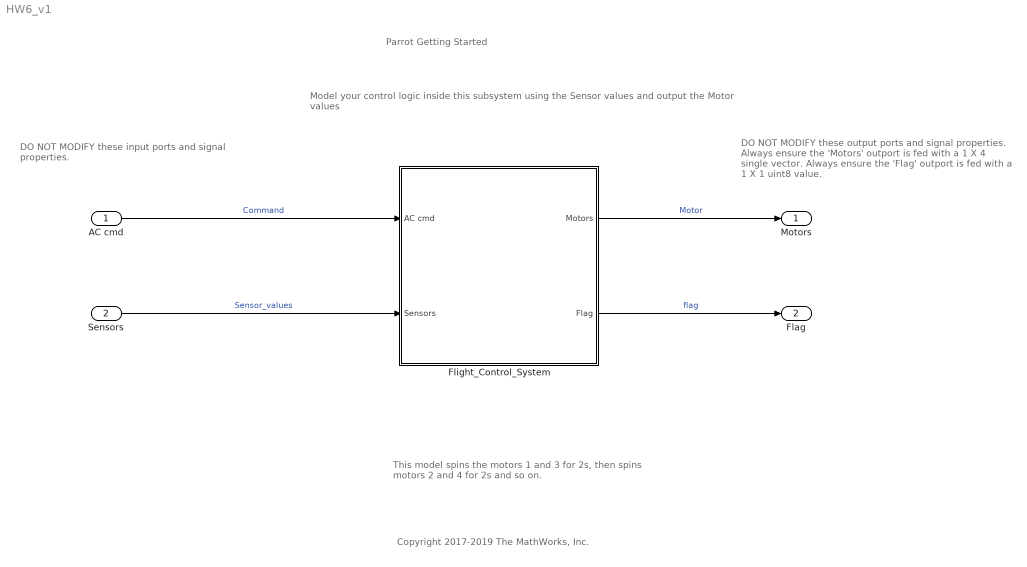
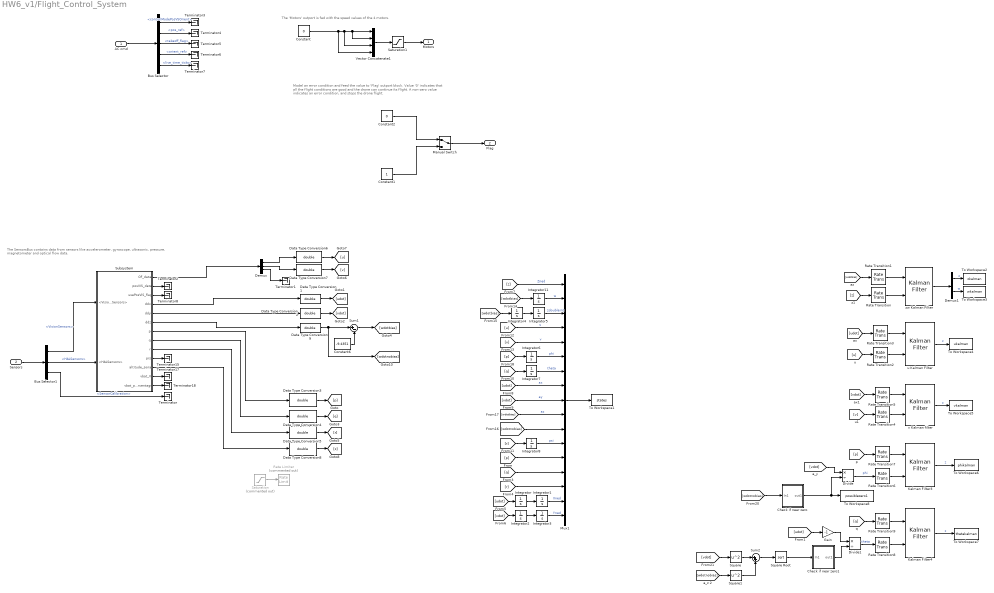
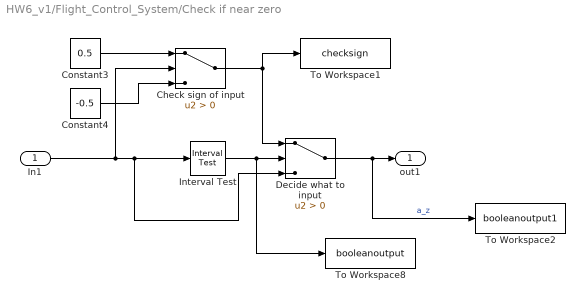
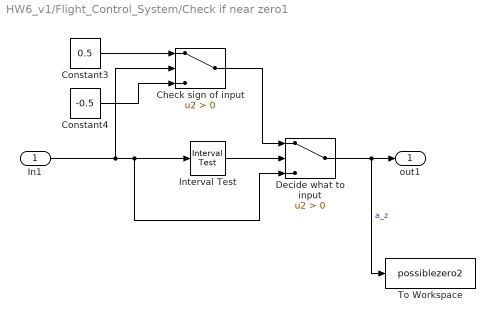
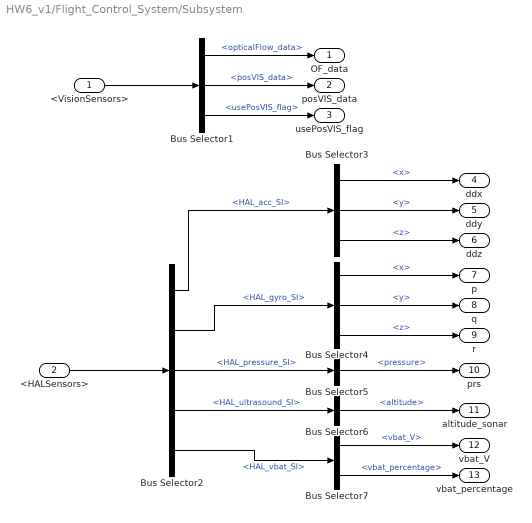
/*
 * HW6_v1.c
 *
 * Academic License - for use in teaching, academic research, and meeting
 * course requirements at degree granting institutions only.  Not for
 * government, commercial, or other organizational use.
 *
 * Code generation for model "HW6_v1".
 *
 * Model version              : 1.134
 * Simulink Coder version : 9.2 (R2019b) 18-Jul-2019
 * C source code generated on : Mon Apr  6 19:08:02 2020
 *
 * Target selection: ert.tlc
 * Embedded hardware selection: ARM Compatible->ARM 9
 * Code generation objectives: Unspecified
 * Validation result: Not run
 */

#include "HW6_v1.h"
#include "HW6_v1_private.h"

/* Exported block signals */
CommandBus cmd_inport;                 /* '<Root>/AC cmd' */
SensorsBus sensor_inport;              /* '<Root>/Sensors' */
real32_T motors_outport[4];            /* '<S1>/Saturation1' */
uint8_T flag_outport;                  /* '<S1>/Manual Switch' */

/* Block signals (default storage) */
B_HW6_v1_T HW6_v1_B;

/* Continuous states */
X_HW6_v1_T HW6_v1_X;

/* Block states (default storage) */
DW_HW6_v1_T HW6_v1_DW;

/* External outputs (root outports fed by signals with default storage) */
ExtY_HW6_v1_T HW6_v1_Y;

/* Real-time model */
RT_MODEL_HW6_v1_T HW6_v1_M_;
RT_MODEL_HW6_v1_T *const HW6_v1_M = &HW6_v1_M_;

/*
 * This function updates continuous states using the ODE3 fixed-step
 * solver algorithm
 */
static void rt_ertODEUpdateContinuousStates(RTWSolverInfo *si )
{
  /* Solver Matrices */
  static const real_T rt_ODE3_A[3] = {
    1.0/2.0, 3.0/4.0, 1.0
  };

  static const real_T rt_ODE3_B[3][3] = {
    { 1.0/2.0, 0.0, 0.0 },

    { 0.0, 3.0/4.0, 0.0 },

    { 2.0/9.0, 1.0/3.0, 4.0/9.0 }
  };

  time_T t = rtsiGetT(si);
  time_T tnew = rtsiGetSolverStopTime(si);
  time_T h = rtsiGetStepSize(si);
  real_T *x = rtsiGetContStates(si);
  ODE3_IntgData *id = (ODE3_IntgData *)rtsiGetSolverData(si);
  real_T *y = id->y;
  real_T *f0 = id->f[0];
  real_T *f1 = id->f[1];
  real_T *f2 = id->f[2];
  real_T hB[3];
  int_T i;
  int_T nXc = 10;
  rtsiSetSimTimeStep(si,MINOR_TIME_STEP);

  /* Save the state values at time t in y, we'll use x as ynew. */
  (void) memcpy(y, x,
                (uint_T)nXc*sizeof(real_T));

  /* Assumes that rtsiSetT and ModelOutputs are up-to-date */
  /* f0 = f(t,y) */
  rtsiSetdX(si, f0);
  HW6_v1_derivatives();

  /* f(:,2) = feval(odefile, t + hA(1), y + f*hB(:,1), args(:)(*)); */
  hB[0] = h * rt_ODE3_B[0][0];
  for (i = 0; i < nXc; i++) {
    x[i] = y[i] + (f0[i]*hB[0]);
  }

  rtsiSetT(si, t + h*rt_ODE3_A[0]);
  rtsiSetdX(si, f1);
  HW6_v1_step();
  HW6_v1_derivatives();

  /* f(:,3) = feval(odefile, t + hA(2), y + f*hB(:,2), args(:)(*)); */
  for (i = 0; i <= 1; i++) {
    hB[i] = h * rt_ODE3_B[1][i];
  }

  for (i = 0; i < nXc; i++) {
    x[i] = y[i] + (f0[i]*hB[0] + f1[i]*hB[1]);
  }

  rtsiSetT(si, t + h*rt_ODE3_A[1]);
  rtsiSetdX(si, f2);
  HW6_v1_step();
  HW6_v1_derivatives();

  /* tnew = t + hA(3);
     ynew = y + f*hB(:,3); */
  for (i = 0; i <= 2; i++) {
    hB[i] = h * rt_ODE3_B[2][i];
  }

  for (i = 0; i < nXc; i++) {
    x[i] = y[i] + (f0[i]*hB[0] + f1[i]*hB[1] + f2[i]*hB[2]);
  }

  rtsiSetT(si, tnew);
  rtsiSetSimTimeStep(si,MAJOR_TIME_STEP);
}

/*
 * System initialize for enable system:
 *    '<S32>/MeasurementUpdate'
 *    '<S84>/MeasurementUpdate'
 *    '<S136>/MeasurementUpdate'
 *    '<S188>/MeasurementUpdate'
 */
void HW6_v1_MeasurementUpdate_Init(B_MeasurementUpdate_HW6_v1_T *localB,
  P_MeasurementUpdate_HW6_v1_T *localP)
{
  /* SystemInitialize for Outport: '<S61>/L*(y[k]-yhat[k|k-1])' */
  localB->Product3 = localP->Lykyhatkk1_Y0;
}

/*
 * Disable for enable system:
 *    '<S32>/MeasurementUpdate'
 *    '<S84>/MeasurementUpdate'
 *    '<S136>/MeasurementUpdate'
 *    '<S188>/MeasurementUpdate'
 */
void HW6_v_MeasurementUpdate_Disable(B_MeasurementUpdate_HW6_v1_T *localB,
  DW_MeasurementUpdate_HW6_v1_T *localDW, P_MeasurementUpdate_HW6_v1_T *localP)
{
  /* Disable for Outport: '<S61>/L*(y[k]-yhat[k|k-1])' */
  localB->Product3 = localP->Lykyhatkk1_Y0;
  localDW->MeasurementUpdate_MODE = false;
}

/*
 * Output and update for enable system:
 *    '<S32>/MeasurementUpdate'
 *    '<S84>/MeasurementUpdate'
 *    '<S136>/MeasurementUpdate'
 *    '<S188>/MeasurementUpdate'
 */
void HW6_v1_MeasurementUpdate(RT_MODEL_HW6_v1_T * const HW6_v1_M, boolean_T
  rtu_Enable, real_T rtu_Lk, real_T rtu_yk, real_T rtu_Ck, real_T rtu_xhatkk1,
  real_T rtu_Dk, real_T rtu_uk, B_MeasurementUpdate_HW6_v1_T *localB,
  DW_MeasurementUpdate_HW6_v1_T *localDW, P_MeasurementUpdate_HW6_v1_T *localP)
{
  /* Outputs for Enabled SubSystem: '<S32>/MeasurementUpdate' incorporates:
   *  EnablePort: '<S61>/Enable'
   */
  if (rtmIsMajorTimeStep(HW6_v1_M)) {
    if (rtu_Enable) {
      localDW->MeasurementUpdate_MODE = true;
    } else {
      if (localDW->MeasurementUpdate_MODE) {
        HW6_v_MeasurementUpdate_Disable(localB, localDW, localP);
      }
    }
  }

  if (localDW->MeasurementUpdate_MODE) {
    /* Product: '<S61>/Product3' incorporates:
     *  Product: '<S61>/C[k]*xhat[k|k-1]'
     *  Product: '<S61>/D[k]*u[k]'
     *  Sum: '<S61>/Add1'
     *  Sum: '<S61>/Sum'
     */
    localB->Product3 = (rtu_yk - (rtu_Ck * rtu_xhatkk1 + rtu_Dk * rtu_uk)) *
      rtu_Lk;
  }

  /* End of Outputs for SubSystem: '<S32>/MeasurementUpdate' */
}

/*
 * System initialize for enable system:
 *    '<S39>/Enabled Subsystem'
 *    '<S91>/Enabled Subsystem'
 *    '<S143>/Enabled Subsystem'
 *    '<S195>/Enabled Subsystem'
 */
void HW6_v1_EnabledSubsystem_Init(B_EnabledSubsystem_HW6_v1_T *localB,
  P_EnabledSubsystem_HW6_v1_T *localP)
{
  /* SystemInitialize for Outport: '<S63>/deltax' */
  localB->Product2 = localP->deltax_Y0;
}

/*
 * Disable for enable system:
 *    '<S39>/Enabled Subsystem'
 *    '<S91>/Enabled Subsystem'
 *    '<S143>/Enabled Subsystem'
 *    '<S195>/Enabled Subsystem'
 */
void HW6_v1_EnabledSubsystem_Disable(B_EnabledSubsystem_HW6_v1_T *localB,
  DW_EnabledSubsystem_HW6_v1_T *localDW, P_EnabledSubsystem_HW6_v1_T *localP)
{
  /* Disable for Outport: '<S63>/deltax' */
  localB->Product2 = localP->deltax_Y0;
  localDW->EnabledSubsystem_MODE = false;
}

/*
 * Output and update for enable system:
 *    '<S39>/Enabled Subsystem'
 *    '<S91>/Enabled Subsystem'
 *    '<S143>/Enabled Subsystem'
 *    '<S195>/Enabled Subsystem'
 */
void HW6_v1_EnabledSubsystem(RT_MODEL_HW6_v1_T * const HW6_v1_M, boolean_T
  rtu_Enable, real_T rtu_Mk, real_T rtu_Ck, real_T rtu_yk, real_T rtu_xhatkk1,
  B_EnabledSubsystem_HW6_v1_T *localB, DW_EnabledSubsystem_HW6_v1_T *localDW,
  P_EnabledSubsystem_HW6_v1_T *localP)
{
  /* Outputs for Enabled SubSystem: '<S39>/Enabled Subsystem' incorporates:
   *  EnablePort: '<S63>/Enable'
   */
  if (rtmIsMajorTimeStep(HW6_v1_M)) {
    if (rtu_Enable) {
      localDW->EnabledSubsystem_MODE = true;
    } else {
      if (localDW->EnabledSubsystem_MODE) {
        HW6_v1_EnabledSubsystem_Disable(localB, localDW, localP);
      }
    }
  }

  if (localDW->EnabledSubsystem_MODE) {
    /* Product: '<S63>/Product2' incorporates:
     *  Product: '<S63>/Product'
     *  Sum: '<S63>/Add1'
     */
    localB->Product2 = (rtu_yk - rtu_Ck * rtu_xhatkk1) * rtu_Mk;
  }

  /* End of Outputs for SubSystem: '<S39>/Enabled Subsystem' */
}

/* Model step function */
void HW6_v1_step(void)
{
  /* local block i/o variables */
  real_T rtb_Reshapey_o;
  real_T rtb_MemoryX_j;
  real_T rtb_MemoryX_m;
  real_T rtb_MemoryX_i;
  real_T rtb_Add;
  real_T rtb_Add_l;
  real_T rtb_Add_h;
  real_T rtb_Add_c;
  if (rtmIsMajorTimeStep(HW6_v1_M)) {
    /* set solver stop time */
    rtsiSetSolverStopTime(&HW6_v1_M->solverInfo,((HW6_v1_M->Timing.clockTick0+1)*
      HW6_v1_M->Timing.stepSize0));
  }                                    /* end MajorTimeStep */

  /* Update absolute time of base rate at minor time step */
  if (rtmIsMinorTimeStep(HW6_v1_M)) {
    HW6_v1_M->Timing.t[0] = rtsiGetT(&HW6_v1_M->solverInfo);
  }

  /* DataTypeConversion: '<S1>/Data Type Conversion1' incorporates:
   *  Inport: '<Root>/Sensors'
   */
  HW6_v1_B.DataTypeConversion1 = sensor_inport.HALSensors.HAL_acc_SI.x;

  /* DataTypeConversion: '<S1>/Data Type Conversion2' incorporates:
   *  Inport: '<Root>/Sensors'
   */
  HW6_v1_B.DataTypeConversion2 = sensor_inport.HALSensors.HAL_acc_SI.y;

  /* Sum: '<S1>/Sum1' incorporates:
   *  Constant: '<S1>/Constant6'
   *  DataTypeConversion: '<S1>/Data Type Conversion9'
   *  Inport: '<Root>/Sensors'
   */
  HW6_v1_B.Sum1 = sensor_inport.HALSensors.HAL_acc_SI.z -
    HW6_v1_P.Constant6_Value;

  /* DataTypeConversion: '<S1>/Data Type Conversion3' incorporates:
   *  Inport: '<Root>/Sensors'
   */
  HW6_v1_B.DataTypeConversion3 = sensor_inport.HALSensors.HAL_gyro_SI.x;

  /* DataTypeConversion: '<S1>/Data Type Conversion4' incorporates:
   *  Inport: '<Root>/Sensors'
   */
  HW6_v1_B.DataTypeConversion4 = sensor_inport.HALSensors.HAL_gyro_SI.y;

  /* DataTypeConversion: '<S1>/Data Type Conversion5' incorporates:
   *  Inport: '<Root>/Sensors'
   */
  HW6_v1_B.DataTypeConversion5 = sensor_inport.HALSensors.HAL_gyro_SI.z;
  if (rtmIsMajorTimeStep(HW6_v1_M)) {
    /* Saturate: '<S1>/Saturation1' incorporates:
     *  Constant: '<S1>/Constant'
     */
    if (HW6_v1_P.Constant_Value > HW6_v1_P.Saturation1_UpperSat) {
      motors_outport[0] = HW6_v1_P.Saturation1_UpperSat;
    } else if (HW6_v1_P.Constant_Value < HW6_v1_P.Saturation1_LowerSat) {
      motors_outport[0] = HW6_v1_P.Saturation1_LowerSat;
    } else {
      motors_outport[0] = (real32_T)HW6_v1_P.Constant_Value;
    }

    /* Outport: '<Root>/Motors' */
    HW6_v1_Y.Motors[0] = motors_outport[0];

    /* Saturate: '<S1>/Saturation1' incorporates:
     *  Constant: '<S1>/Constant'
     */
    if (HW6_v1_P.Constant_Value > HW6_v1_P.Saturation1_UpperSat) {
      motors_outport[1] = HW6_v1_P.Saturation1_UpperSat;
    } else if (HW6_v1_P.Constant_Value < HW6_v1_P.Saturation1_LowerSat) {
      motors_outport[1] = HW6_v1_P.Saturation1_LowerSat;
    } else {
      motors_outport[1] = (real32_T)HW6_v1_P.Constant_Value;
    }

    /* Outport: '<Root>/Motors' */
    HW6_v1_Y.Motors[1] = motors_outport[1];

    /* Saturate: '<S1>/Saturation1' incorporates:
     *  Constant: '<S1>/Constant'
     */
    if (HW6_v1_P.Constant_Value > HW6_v1_P.Saturation1_UpperSat) {
      motors_outport[2] = HW6_v1_P.Saturation1_UpperSat;
    } else if (HW6_v1_P.Constant_Value < HW6_v1_P.Saturation1_LowerSat) {
      motors_outport[2] = HW6_v1_P.Saturation1_LowerSat;
    } else {
      motors_outport[2] = (real32_T)HW6_v1_P.Constant_Value;
    }

    /* Outport: '<Root>/Motors' */
    HW6_v1_Y.Motors[2] = motors_outport[2];

    /* Saturate: '<S1>/Saturation1' incorporates:
     *  Constant: '<S1>/Constant'
     */
    if (HW6_v1_P.Constant_Value > HW6_v1_P.Saturation1_UpperSat) {
      motors_outport[3] = HW6_v1_P.Saturation1_UpperSat;
    } else if (HW6_v1_P.Constant_Value < HW6_v1_P.Saturation1_LowerSat) {
      motors_outport[3] = HW6_v1_P.Saturation1_LowerSat;
    } else {
      motors_outport[3] = (real32_T)HW6_v1_P.Constant_Value;
    }

    /* Outport: '<Root>/Motors' */
    HW6_v1_Y.Motors[3] = motors_outport[3];

    /* ManualSwitch: '<S1>/Manual Switch' incorporates:
     *  Constant: '<S1>/Constant1'
     *  Constant: '<S1>/Constant2'
     */
    if (HW6_v1_P.ManualSwitch_CurrentSetting == 1) {
      flag_outport = HW6_v1_P.Constant2_Value;
    } else {
      flag_outport = HW6_v1_P.Constant1_Value;
    }

    /* End of ManualSwitch: '<S1>/Manual Switch' */

    /* Outport: '<Root>/Flag' */
    HW6_v1_Y.Flag = flag_outport;

    /* SignalConversion generated from: '<S1>/To Workspace1' incorporates:
     *  DataTypeConversion: '<S1>/Data Type Conversion6'
     *  DataTypeConversion: '<S1>/Data Type Conversion7'
     *  DataTypeConversion: '<S1>/Data Type Conversion8'
     *  DataTypeConversion: '<S1>/Data Type Conversion9'
     *  Inport: '<Root>/Sensors'
     *  Integrator: '<S1>/Integrator1'
     *  Integrator: '<S1>/Integrator11'
     *  Integrator: '<S1>/Integrator3'
     *  Integrator: '<S1>/Integrator5'
     *  Integrator: '<S1>/Integrator6'
     *  Integrator: '<S1>/Integrator7'
     *  Integrator: '<S1>/Integrator8'
     */
    HW6_v1_B.TmpSignalConversionAtToWork[0] =
      sensor_inport.HALSensors.HAL_ultrasound_SI.altitude;
    HW6_v1_B.TmpSignalConversionAtToWork[1] = HW6_v1_X.Integrator11_CSTATE;
    HW6_v1_B.TmpSignalConversionAtToWork[2] = HW6_v1_X.Integrator5_CSTATE;
    HW6_v1_B.TmpSignalConversionAtToWork[3] =
      sensor_inport.VisionSensors.opticalFlow_data[0];
    HW6_v1_B.TmpSignalConversionAtToWork[4] =
      sensor_inport.VisionSensors.opticalFlow_data[1];
    HW6_v1_B.TmpSignalConversionAtToWork[5] = HW6_v1_X.Integrator6_CSTATE;
    HW6_v1_B.TmpSignalConversionAtToWork[6] = HW6_v1_X.Integrator7_CSTATE;
    HW6_v1_B.TmpSignalConversionAtToWork[7] = HW6_v1_B.DataTypeConversion1;
    HW6_v1_B.TmpSignalConversionAtToWork[8] = HW6_v1_B.DataTypeConversion2;
    HW6_v1_B.TmpSignalConversionAtToWork[9] = HW6_v1_B.Sum1;
    HW6_v1_B.TmpSignalConversionAtToWork[10] =
      sensor_inport.HALSensors.HAL_acc_SI.z;
    HW6_v1_B.TmpSignalConversionAtToWork[11] = HW6_v1_X.Integrator8_CSTATE;
    HW6_v1_B.TmpSignalConversionAtToWork[12] = HW6_v1_B.DataTypeConversion3;
    HW6_v1_B.TmpSignalConversionAtToWork[13] = HW6_v1_B.DataTypeConversion4;
    HW6_v1_B.TmpSignalConversionAtToWork[14] = HW6_v1_B.DataTypeConversion5;
    HW6_v1_B.TmpSignalConversionAtToWork[15] = HW6_v1_X.Integrator1_CSTATE;
    HW6_v1_B.TmpSignalConversionAtToWork[16] = HW6_v1_X.Integrator3_CSTATE;

    /* ToWorkspace: '<S1>/To Workspace1' */
    {
      double locTime = ((HW6_v1_M->Timing.clockTick1) * 0.005);
      ;
      if (rtmIsMajorTimeStep(HW6_v1_M)) {
        rt_UpdateStructLogVar((StructLogVar *)
                              HW6_v1_DW.ToWorkspace1_PWORK.LoggedData, &locTime,
                              &HW6_v1_B.TmpSignalConversionAtToWork[0]);
      }
    }

    /* Reshape: '<S9>/Reshapey' incorporates:
     *  DataTypeConversion: '<S1>/Data Type Conversion8'
     *  Inport: '<Root>/Sensors'
     */
    HW6_v1_B.Reshapey = sensor_inport.HALSensors.HAL_ultrasound_SI.altitude;

    /* Delay: '<S9>/MemoryX' incorporates:
     *  Constant: '<S9>/X0'
     */
    if (HW6_v1_DW.icLoad != 0) {
      HW6_v1_DW.MemoryX_DSTATE[0] = HW6_v1_P.X0_Value[0];
      HW6_v1_DW.MemoryX_DSTATE[1] = HW6_v1_P.X0_Value[1];
    }

    HW6_v1_B.rtb_MemoryX_idx_0 = HW6_v1_DW.MemoryX_DSTATE[0];
    HW6_v1_B.rtb_MemoryX_idx_1 = HW6_v1_DW.MemoryX_DSTATE[1];

    /* Outputs for Enabled SubSystem: '<S247>/Enabled Subsystem' incorporates:
     *  EnablePort: '<S271>/Enable'
     */
    if (rtmIsMajorTimeStep(HW6_v1_M)) {
      /* Constant: '<S9>/Enable' */
      if (HW6_v1_P.Enable_Value) {
        HW6_v1_DW.EnabledSubsystem_MODE = true;
      } else {
        if (HW6_v1_DW.EnabledSubsystem_MODE) {
          /* Disable for Outport: '<S271>/deltax' */
          HW6_v1_B.Product2[0] = HW6_v1_P.deltax_Y0;
          HW6_v1_B.Product2[1] = HW6_v1_P.deltax_Y0;
          HW6_v1_DW.EnabledSubsystem_MODE = false;
        }
      }
    }

    if (HW6_v1_DW.EnabledSubsystem_MODE) {
      /* Sum: '<S271>/Add1' incorporates:
       *  Constant: '<S9>/C'
       *  DataTypeConversion: '<S1>/Data Type Conversion8'
       *  Delay: '<S9>/MemoryX'
       *  Inport: '<Root>/Sensors'
       *  Product: '<S271>/Product'
       */
      HW6_v1_B.Sum = sensor_inport.HALSensors.HAL_ultrasound_SI.altitude -
        (HW6_v1_P.C_Value[0] * HW6_v1_DW.MemoryX_DSTATE[0] + HW6_v1_P.C_Value[1]
         * HW6_v1_DW.MemoryX_DSTATE[1]);

      /* Product: '<S271>/Product2' incorporates:
       *  Constant: '<S220>/KalmanGainM'
       */
      HW6_v1_B.Product2[0] = HW6_v1_P.KalmanGainM_Value[0] * HW6_v1_B.Sum;
      HW6_v1_B.Product2[1] = HW6_v1_P.KalmanGainM_Value[1] * HW6_v1_B.Sum;
    }

    /* End of Outputs for SubSystem: '<S247>/Enabled Subsystem' */

    /* Sum: '<S247>/Add' incorporates:
     *  Delay: '<S9>/MemoryX'
     */
    HW6_v1_B.Akxhatkk1[0] = HW6_v1_B.Product2[0] + HW6_v1_DW.MemoryX_DSTATE[0];
    HW6_v1_B.Akxhatkk1[1] = HW6_v1_B.Product2[1] + HW6_v1_DW.MemoryX_DSTATE[1];

    /* ToWorkspace: '<S1>/To Workspace2' */
    {
      double locTime = ((HW6_v1_M->Timing.clockTick1) * 0.005);
      ;
      if (rtmIsMajorTimeStep(HW6_v1_M)) {
        rt_UpdateStructLogVar((StructLogVar *)
                              HW6_v1_DW.ToWorkspace2_PWORK.LoggedData, &locTime,
                              &HW6_v1_B.Akxhatkk1[0]);
      }
    }

    /* ToWorkspace: '<S1>/To Workspace3' */
    {
      double locTime = ((HW6_v1_M->Timing.clockTick1) * 0.005);
      ;
      if (rtmIsMajorTimeStep(HW6_v1_M)) {
        rt_UpdateStructLogVar((StructLogVar *)
                              HW6_v1_DW.ToWorkspace3_PWORK.LoggedData, &locTime,
                              &HW6_v1_B.Akxhatkk1[1]);
      }
    }

    /* Reshape: '<S7>/Reshapey' incorporates:
     *  DataTypeConversion: '<S1>/Data Type Conversion6'
     *  Inport: '<Root>/Sensors'
     */
    HW6_v1_B.Reshapey_e = sensor_inport.VisionSensors.opticalFlow_data[0];

    /* Delay: '<S7>/MemoryX' incorporates:
     *  Constant: '<S7>/X0'
     */
    if (HW6_v1_DW.icLoad_m != 0) {
      HW6_v1_DW.MemoryX_DSTATE_l = HW6_v1_P.X0_Value_h;
    }

    HW6_v1_B.MemoryX_o = HW6_v1_DW.MemoryX_DSTATE_l;

    /* End of Delay: '<S7>/MemoryX' */

    /* Outputs for Enabled SubSystem: '<S143>/Enabled Subsystem' */
    /* Constant: '<S7>/Enable' incorporates:
     *  Constant: '<S116>/KalmanGainM'
     *  Constant: '<S7>/C'
     */
    HW6_v1_EnabledSubsystem(HW6_v1_M, HW6_v1_P.Enable_Value_g,
      HW6_v1_P.KalmanGainM_Value_c, HW6_v1_P.C_Value_a, HW6_v1_B.Reshapey_e,
      HW6_v1_B.MemoryX_o, &HW6_v1_B.EnabledSubsystem_d,
      &HW6_v1_DW.EnabledSubsystem_d, &HW6_v1_P.EnabledSubsystem_d);

    /* End of Outputs for SubSystem: '<S143>/Enabled Subsystem' */

    /* Sum: '<S143>/Add' */
    HW6_v1_B.Dkuk = HW6_v1_B.EnabledSubsystem_d.Product2 + HW6_v1_B.MemoryX_o;

    /* ToWorkspace: '<S1>/To Workspace4' */
    {
      double locTime = ((HW6_v1_M->Timing.clockTick1) * 0.005);
      ;
      if (rtmIsMajorTimeStep(HW6_v1_M)) {
        rt_UpdateStructLogVar((StructLogVar *)
                              HW6_v1_DW.ToWorkspace4_PWORK.LoggedData, &locTime,
                              &HW6_v1_B.Dkuk);
      }
    }

    /* Reshape: '<S8>/Reshapey' incorporates:
     *  DataTypeConversion: '<S1>/Data Type Conversion7'
     *  Inport: '<Root>/Sensors'
     */
    rtb_Reshapey_o = sensor_inport.VisionSensors.opticalFlow_data[1];

    /* Delay: '<S8>/MemoryX' incorporates:
     *  Constant: '<S8>/X0'
     */
    if (HW6_v1_DW.icLoad_l != 0) {
      HW6_v1_DW.MemoryX_DSTATE_f = HW6_v1_P.X0_Value_l;
    }

    rtb_MemoryX_j = HW6_v1_DW.MemoryX_DSTATE_f;

    /* End of Delay: '<S8>/MemoryX' */

    /* Outputs for Enabled SubSystem: '<S195>/Enabled Subsystem' */
    /* Constant: '<S8>/Enable' incorporates:
     *  Constant: '<S168>/KalmanGainM'
     *  Constant: '<S8>/C'
     */
    HW6_v1_EnabledSubsystem(HW6_v1_M, HW6_v1_P.Enable_Value_m,
      HW6_v1_P.KalmanGainM_Value_i, HW6_v1_P.C_Value_d, rtb_Reshapey_o,
      rtb_MemoryX_j, &HW6_v1_B.EnabledSubsystem_f0,
      &HW6_v1_DW.EnabledSubsystem_f0, &HW6_v1_P.EnabledSubsystem_f0);

    /* End of Outputs for SubSystem: '<S195>/Enabled Subsystem' */

    /* Sum: '<S195>/Add' */
    HW6_v1_B.Dkuk = HW6_v1_B.EnabledSubsystem_f0.Product2 + rtb_MemoryX_j;

    /* ToWorkspace: '<S1>/To Workspace5' */
    {
      double locTime = ((HW6_v1_M->Timing.clockTick1) * 0.005);
      ;
      if (rtmIsMajorTimeStep(HW6_v1_M)) {
        rt_UpdateStructLogVar((StructLogVar *)
                              HW6_v1_DW.ToWorkspace5_PWORK.LoggedData, &locTime,
                              &HW6_v1_B.Dkuk);
      }
    }
  }

  /* Switch: '<S2>/Check sign of input' incorporates:
   *  Constant: '<S2>/Constant3'
   *  Constant: '<S2>/Constant4'
   *  DataTypeConversion: '<S1>/Data Type Conversion9'
   *  Inport: '<Root>/Sensors'
   */
  if (sensor_inport.HALSensors.HAL_acc_SI.z >
      HW6_v1_P.Checksignofinput_Threshold_b) {
    HW6_v1_B.Checksignofinput = HW6_v1_P.Constant3_Value;
  } else {
    HW6_v1_B.Checksignofinput = HW6_v1_P.Constant4_Value;
  }

  /* End of Switch: '<S2>/Check sign of input' */

  /* Logic: '<S10>/AND' incorporates:
   *  Constant: '<S10>/Lower Limit'
   *  Constant: '<S10>/Upper Limit'
   *  DataTypeConversion: '<S1>/Data Type Conversion9'
   *  Inport: '<Root>/Sensors'
   *  RelationalOperator: '<S10>/Lower Test'
   *  RelationalOperator: '<S10>/Upper Test'
   */
  HW6_v1_B.AND = ((HW6_v1_P.IntervalTest_lowlimit <=
                   sensor_inport.HALSensors.HAL_acc_SI.z) &&
                  (sensor_inport.HALSensors.HAL_acc_SI.z <=
                   HW6_v1_P.IntervalTest_uplimit));

  /* Switch: '<S2>/Decide what to input' incorporates:
   *  DataTypeConversion: '<S1>/Data Type Conversion9'
   *  Inport: '<Root>/Sensors'
   */
  if (HW6_v1_B.AND) {
    HW6_v1_B.a_z = HW6_v1_B.Checksignofinput;
  } else {
    HW6_v1_B.a_z = sensor_inport.HALSensors.HAL_acc_SI.z;
  }

  /* End of Switch: '<S2>/Decide what to input' */

  /* Product: '<S1>/Divide' */
  HW6_v1_B.Sum = HW6_v1_B.DataTypeConversion2 / HW6_v1_B.a_z;
  if (rtmIsMajorTimeStep(HW6_v1_M)) {
    /* Delay: '<S4>/MemoryX' incorporates:
     *  Constant: '<S4>/X0'
     */
    if (HW6_v1_DW.icLoad_d != 0) {
      HW6_v1_DW.MemoryX_DSTATE_g = HW6_v1_P.X0_Value_g;
    }

    rtb_MemoryX_m = HW6_v1_DW.MemoryX_DSTATE_g;

    /* End of Delay: '<S4>/MemoryX' */

    /* Outputs for Enabled SubSystem: '<S39>/Enabled Subsystem' */
    /* Constant: '<S4>/Enable' incorporates:
     *  Constant: '<S12>/KalmanGainM'
     *  Constant: '<S4>/C'
     */
    HW6_v1_EnabledSubsystem(HW6_v1_M, HW6_v1_P.Enable_Value_i,
      HW6_v1_P.KalmanGainM_Value_l, HW6_v1_P.C_Value_h, HW6_v1_B.Sum,
      rtb_MemoryX_m, &HW6_v1_B.EnabledSubsystem, &HW6_v1_DW.EnabledSubsystem,
      &HW6_v1_P.EnabledSubsystem);

    /* End of Outputs for SubSystem: '<S39>/Enabled Subsystem' */

    /* Sum: '<S39>/Add' */
    HW6_v1_B.Dkuk = HW6_v1_B.EnabledSubsystem.Product2 + rtb_MemoryX_m;

    /* ToWorkspace: '<S1>/To Workspace6' */
    {
      double locTime = ((HW6_v1_M->Timing.clockTick1) * 0.005);
      ;
      if (rtmIsMajorTimeStep(HW6_v1_M)) {
        rt_UpdateStructLogVar((StructLogVar *)
                              HW6_v1_DW.ToWorkspace6_PWORK.LoggedData, &locTime,
                              &HW6_v1_B.Dkuk);
      }
    }
  }

  /* Sqrt: '<S1>/Square Root' incorporates:
   *  DataTypeConversion: '<S1>/Data Type Conversion9'
   *  Inport: '<Root>/Sensors'
   *  Math: '<S1>/Square'
   *  Math: '<S1>/Square1'
   *  Sum: '<S1>/Sum2'
   */
  HW6_v1_B.SquareRoot = sqrt(HW6_v1_B.DataTypeConversion2 *
    HW6_v1_B.DataTypeConversion2 + (real_T)sensor_inport.HALSensors.HAL_acc_SI.z
    * sensor_inport.HALSensors.HAL_acc_SI.z);

  /* Switch: '<S3>/Decide what to input' incorporates:
   *  Constant: '<S11>/Lower Limit'
   *  Constant: '<S11>/Upper Limit'
   *  Logic: '<S11>/AND'
   *  RelationalOperator: '<S11>/Lower Test'
   *  RelationalOperator: '<S11>/Upper Test'
   */
  if ((HW6_v1_P.IntervalTest_lowlimit_n <= HW6_v1_B.SquareRoot) &&
      (HW6_v1_B.SquareRoot <= HW6_v1_P.IntervalTest_uplimit_c)) {
    /* Switch: '<S3>/Check sign of input' incorporates:
     *  Constant: '<S3>/Constant3'
     *  Constant: '<S3>/Constant4'
     */
    if (HW6_v1_B.SquareRoot > HW6_v1_P.Checksignofinput_Threshold) {
      HW6_v1_B.a_z_m = HW6_v1_P.Constant3_Value_f;
    } else {
      HW6_v1_B.a_z_m = HW6_v1_P.Constant4_Value_n;
    }

    /* End of Switch: '<S3>/Check sign of input' */
  } else {
    HW6_v1_B.a_z_m = HW6_v1_B.SquareRoot;
  }

  /* End of Switch: '<S3>/Decide what to input' */

  /* Product: '<S1>/Divide1' incorporates:
   *  Gain: '<S1>/Gain'
   */
  HW6_v1_B.SquareRoot = HW6_v1_P.Gain_Gain * HW6_v1_B.DataTypeConversion1 /
    HW6_v1_B.a_z_m;
  if (rtmIsMajorTimeStep(HW6_v1_M)) {
    /* Delay: '<S5>/MemoryX' incorporates:
     *  Constant: '<S5>/X0'
     */
    if (HW6_v1_DW.icLoad_e != 0) {
      HW6_v1_DW.MemoryX_DSTATE_b = HW6_v1_P.X0_Value_p;
    }

    rtb_MemoryX_i = HW6_v1_DW.MemoryX_DSTATE_b;

    /* End of Delay: '<S5>/MemoryX' */

    /* Outputs for Enabled SubSystem: '<S91>/Enabled Subsystem' */
    /* Constant: '<S5>/Enable' incorporates:
     *  Constant: '<S5>/C'
     *  Constant: '<S64>/KalmanGainM'
     */
    HW6_v1_EnabledSubsystem(HW6_v1_M, HW6_v1_P.Enable_Value_gd,
      HW6_v1_P.KalmanGainM_Value_n, HW6_v1_P.C_Value_b, HW6_v1_B.SquareRoot,
      rtb_MemoryX_i, &HW6_v1_B.EnabledSubsystem_f, &HW6_v1_DW.EnabledSubsystem_f,
      &HW6_v1_P.EnabledSubsystem_f);

    /* End of Outputs for SubSystem: '<S91>/Enabled Subsystem' */

    /* Sum: '<S91>/Add' */
    HW6_v1_B.Dkuk = HW6_v1_B.EnabledSubsystem_f.Product2 + rtb_MemoryX_i;

    /* ToWorkspace: '<S1>/To Workspace7' */
    {
      double locTime = ((HW6_v1_M->Timing.clockTick1) * 0.005);
      ;
      if (rtmIsMajorTimeStep(HW6_v1_M)) {
        rt_UpdateStructLogVar((StructLogVar *)
                              HW6_v1_DW.ToWorkspace7_PWORK.LoggedData, &locTime,
                              &HW6_v1_B.Dkuk);
      }
    }

    /* ToWorkspace: '<S1>/To Workspace8' */
    {
      double locTime = ((HW6_v1_M->Timing.clockTick1) * 0.005);
      ;
      if (rtmIsMajorTimeStep(HW6_v1_M)) {
        rt_UpdateStructLogVar((StructLogVar *)
                              HW6_v1_DW.ToWorkspace8_PWORK.LoggedData, &locTime,
                              &HW6_v1_B.a_z);
      }
    }

    /* ToWorkspace: '<S2>/To Workspace1' */
    {
      double locTime = ((HW6_v1_M->Timing.clockTick1) * 0.005);
      ;
      if (rtmIsMajorTimeStep(HW6_v1_M)) {
        rt_UpdateStructLogVar((StructLogVar *)
                              HW6_v1_DW.ToWorkspace1_PWORK_j.LoggedData,
                              &locTime, &HW6_v1_B.Checksignofinput);
      }
    }

    /* ToWorkspace: '<S2>/To Workspace2' */
    {
      double locTime = ((HW6_v1_M->Timing.clockTick1) * 0.005);
      ;
      if (rtmIsMajorTimeStep(HW6_v1_M)) {
        rt_UpdateStructLogVar((StructLogVar *)
                              HW6_v1_DW.ToWorkspace2_PWORK_n.LoggedData,
                              &locTime, &HW6_v1_B.a_z);
      }
    }

    /* ToWorkspace: '<S2>/To Workspace8' */
    {
      double locTime = ((HW6_v1_M->Timing.clockTick1) * 0.005);
      ;
      if (rtmIsMajorTimeStep(HW6_v1_M)) {
        rt_UpdateStructLogVar((StructLogVar *)
                              HW6_v1_DW.ToWorkspace8_PWORK_a.LoggedData,
                              &locTime, &HW6_v1_B.AND);
      }
    }

    /* ToWorkspace: '<S3>/To Workspace' */
    {
      double locTime = ((HW6_v1_M->Timing.clockTick1) * 0.005);
      ;
      if (rtmIsMajorTimeStep(HW6_v1_M)) {
        rt_UpdateStructLogVar((StructLogVar *)
                              HW6_v1_DW.ToWorkspace_PWORK.LoggedData, &locTime,
                              &HW6_v1_B.a_z_m);
      }
    }
  }

  /* Integrator: '<S1>/Integrator' */
  HW6_v1_B.Integrator = HW6_v1_X.Integrator_CSTATE;

  /* Integrator: '<S1>/Integrator2' */
  HW6_v1_B.Integrator2 = HW6_v1_X.Integrator2_CSTATE;

  /* Integrator: '<S1>/Integrator4' */
  HW6_v1_B.Integrator4 = HW6_v1_X.Integrator4_CSTATE;
  if (rtmIsMajorTimeStep(HW6_v1_M)) {
    /* Product: '<S32>/A[k]*xhat[k|k-1]' incorporates:
     *  Constant: '<S4>/A'
     */
    HW6_v1_B.Dkuk = HW6_v1_P.A_Value * rtb_MemoryX_m;

    /* Outputs for Enabled SubSystem: '<S32>/MeasurementUpdate' */
    /* Constant: '<S4>/Enable' incorporates:
     *  Constant: '<S12>/KalmanGainL'
     *  Constant: '<S4>/C'
     *  Constant: '<S4>/D'
     */
    HW6_v1_MeasurementUpdate(HW6_v1_M, HW6_v1_P.Enable_Value_i,
      HW6_v1_P.KalmanGainL_Value, HW6_v1_B.Sum, HW6_v1_P.C_Value_h,
      rtb_MemoryX_m, HW6_v1_P.D_Value, HW6_v1_B.DataTypeConversion3,
      &HW6_v1_B.MeasurementUpdate, &HW6_v1_DW.MeasurementUpdate,
      &HW6_v1_P.MeasurementUpdate);

    /* End of Outputs for SubSystem: '<S32>/MeasurementUpdate' */

    /* Sum: '<S32>/Add' incorporates:
     *  Constant: '<S4>/B'
     *  Product: '<S32>/B[k]*u[k]'
     */
    rtb_Add = (HW6_v1_P.B_Value * HW6_v1_B.DataTypeConversion3 + HW6_v1_B.Dkuk)
      + HW6_v1_B.MeasurementUpdate.Product3;

    /* Product: '<S84>/B[k]*u[k]' incorporates:
     *  Constant: '<S5>/B'
     */
    HW6_v1_B.Dkuk = HW6_v1_P.B_Value_l * HW6_v1_B.DataTypeConversion4;

    /* Outputs for Enabled SubSystem: '<S84>/MeasurementUpdate' */
    /* Constant: '<S5>/Enable' incorporates:
     *  Constant: '<S5>/C'
     *  Constant: '<S5>/D'
     *  Constant: '<S64>/KalmanGainL'
     */
    HW6_v1_MeasurementUpdate(HW6_v1_M, HW6_v1_P.Enable_Value_gd,
      HW6_v1_P.KalmanGainL_Value_o, HW6_v1_B.SquareRoot, HW6_v1_P.C_Value_b,
      rtb_MemoryX_i, HW6_v1_P.D_Value_i, HW6_v1_B.DataTypeConversion4,
      &HW6_v1_B.MeasurementUpdate_c, &HW6_v1_DW.MeasurementUpdate_c,
      &HW6_v1_P.MeasurementUpdate_c);

    /* End of Outputs for SubSystem: '<S84>/MeasurementUpdate' */

    /* Sum: '<S84>/Add' incorporates:
     *  Constant: '<S5>/A'
     *  Product: '<S84>/A[k]*xhat[k|k-1]'
     */
    rtb_Add_l = (HW6_v1_P.A_Value_c * rtb_MemoryX_i + HW6_v1_B.Dkuk) +
      HW6_v1_B.MeasurementUpdate_c.Product3;

    /* Product: '<S136>/B[k]*u[k]' incorporates:
     *  Constant: '<S7>/B'
     *  Reshape: '<S7>/Reshapeu'
     */
    HW6_v1_B.Dkuk = HW6_v1_P.B_Value_g * HW6_v1_B.DataTypeConversion1;

    /* Outputs for Enabled SubSystem: '<S136>/MeasurementUpdate' */
    /* Constant: '<S7>/Enable' incorporates:
     *  Constant: '<S116>/KalmanGainL'
     *  Constant: '<S7>/C'
     *  Constant: '<S7>/D'
     *  Reshape: '<S7>/Reshapeu'
     */
    HW6_v1_MeasurementUpdate(HW6_v1_M, HW6_v1_P.Enable_Value_g,
      HW6_v1_P.KalmanGainL_Value_j, HW6_v1_B.Reshapey_e, HW6_v1_P.C_Value_a,
      HW6_v1_B.MemoryX_o, HW6_v1_P.D_Value_h, HW6_v1_B.DataTypeConversion1,
      &HW6_v1_B.MeasurementUpdate_h, &HW6_v1_DW.MeasurementUpdate_h,
      &HW6_v1_P.MeasurementUpdate_h);

    /* End of Outputs for SubSystem: '<S136>/MeasurementUpdate' */

    /* Sum: '<S136>/Add' incorporates:
     *  Constant: '<S7>/A'
     *  Product: '<S136>/A[k]*xhat[k|k-1]'
     */
    rtb_Add_h = (HW6_v1_P.A_Value_m * HW6_v1_B.MemoryX_o + HW6_v1_B.Dkuk) +
      HW6_v1_B.MeasurementUpdate_h.Product3;

    /* Product: '<S188>/B[k]*u[k]' incorporates:
     *  Constant: '<S8>/B'
     *  Reshape: '<S8>/Reshapeu'
     */
    HW6_v1_B.Dkuk = HW6_v1_P.B_Value_p * HW6_v1_B.DataTypeConversion2;

    /* Outputs for Enabled SubSystem: '<S188>/MeasurementUpdate' */
    /* Constant: '<S8>/Enable' incorporates:
     *  Constant: '<S168>/KalmanGainL'
     *  Constant: '<S8>/C'
     *  Constant: '<S8>/D'
     *  Reshape: '<S8>/Reshapeu'
     */
    HW6_v1_MeasurementUpdate(HW6_v1_M, HW6_v1_P.Enable_Value_m,
      HW6_v1_P.KalmanGainL_Value_g, rtb_Reshapey_o, HW6_v1_P.C_Value_d,
      rtb_MemoryX_j, HW6_v1_P.D_Value_e, HW6_v1_B.DataTypeConversion2,
      &HW6_v1_B.MeasurementUpdate_f, &HW6_v1_DW.MeasurementUpdate_f,
      &HW6_v1_P.MeasurementUpdate_f);

    /* End of Outputs for SubSystem: '<S188>/MeasurementUpdate' */

    /* Sum: '<S188>/Add' incorporates:
     *  Constant: '<S8>/A'
     *  Product: '<S188>/A[k]*xhat[k|k-1]'
     */
    rtb_Add_c = (HW6_v1_P.A_Value_mn * rtb_MemoryX_j + HW6_v1_B.Dkuk) +
      HW6_v1_B.MeasurementUpdate_f.Product3;

    /* Product: '<S240>/A[k]*xhat[k|k-1]' incorporates:
     *  Constant: '<S9>/A'
     */
    HW6_v1_B.Akxhatkk1[0] = 0.0;
    HW6_v1_B.Akxhatkk1[0] += HW6_v1_P.A_Value_b[0] * HW6_v1_B.rtb_MemoryX_idx_0;
    HW6_v1_B.Akxhatkk1[0] += HW6_v1_P.A_Value_b[2] * HW6_v1_B.rtb_MemoryX_idx_1;
    HW6_v1_B.Akxhatkk1[1] = 0.0;
    HW6_v1_B.Akxhatkk1[1] += HW6_v1_P.A_Value_b[1] * HW6_v1_B.rtb_MemoryX_idx_0;
    HW6_v1_B.Akxhatkk1[1] += HW6_v1_P.A_Value_b[3] * HW6_v1_B.rtb_MemoryX_idx_1;

    /* Outputs for Enabled SubSystem: '<S240>/MeasurementUpdate' incorporates:
     *  EnablePort: '<S269>/Enable'
     */
    if (rtmIsMajorTimeStep(HW6_v1_M)) {
      /* Constant: '<S9>/Enable' */
      if (HW6_v1_P.Enable_Value) {
        HW6_v1_DW.MeasurementUpdate_MODE = true;
      } else {
        if (HW6_v1_DW.MeasurementUpdate_MODE) {
          /* Disable for Outport: '<S269>/L*(y[k]-yhat[k|k-1])' */
          HW6_v1_B.Product3[0] = HW6_v1_P.Lykyhatkk1_Y0;
          HW6_v1_B.Product3[1] = HW6_v1_P.Lykyhatkk1_Y0;
          HW6_v1_DW.MeasurementUpdate_MODE = false;
        }
      }
    }

    if (HW6_v1_DW.MeasurementUpdate_MODE) {
      /* Product: '<S269>/D[k]*u[k]' incorporates:
       *  Constant: '<S9>/D'
       *  Reshape: '<S9>/Reshapeu'
       */
      HW6_v1_B.Dkuk = HW6_v1_P.D_Value_d * HW6_v1_B.Sum1;

      /* Sum: '<S269>/Sum' incorporates:
       *  Constant: '<S9>/C'
       *  Product: '<S269>/C[k]*xhat[k|k-1]'
       *  Sum: '<S269>/Add1'
       */
      HW6_v1_B.Sum = HW6_v1_B.Reshapey - ((HW6_v1_P.C_Value[0] *
        HW6_v1_B.rtb_MemoryX_idx_0 + HW6_v1_P.C_Value[1] *
        HW6_v1_B.rtb_MemoryX_idx_1) + HW6_v1_B.Dkuk);

      /* Product: '<S269>/Product3' incorporates:
       *  Constant: '<S220>/KalmanGainL'
       */
      HW6_v1_B.Product3[0] = HW6_v1_P.KalmanGainL_Value_n[0] * HW6_v1_B.Sum;
      HW6_v1_B.Product3[1] = HW6_v1_P.KalmanGainL_Value_n[1] * HW6_v1_B.Sum;
    }

    /* End of Outputs for SubSystem: '<S240>/MeasurementUpdate' */

    /* Sum: '<S240>/Add' incorporates:
     *  Constant: '<S9>/B'
     *  Product: '<S240>/B[k]*u[k]'
     *  Reshape: '<S9>/Reshapeu'
     */
    HW6_v1_B.Add_m[0] = (HW6_v1_P.B_Value_n[0] * HW6_v1_B.Sum1 +
                         HW6_v1_B.Akxhatkk1[0]) + HW6_v1_B.Product3[0];
    HW6_v1_B.Add_m[1] = (HW6_v1_P.B_Value_n[1] * HW6_v1_B.Sum1 +
                         HW6_v1_B.Akxhatkk1[1]) + HW6_v1_B.Product3[1];
  }

  if (rtmIsMajorTimeStep(HW6_v1_M)) {
    /* Matfile logging */
    rt_UpdateTXYLogVars(HW6_v1_M->rtwLogInfo, (HW6_v1_M->Timing.t));
  }                                    /* end MajorTimeStep */

  if (rtmIsMajorTimeStep(HW6_v1_M)) {
    if (rtmIsMajorTimeStep(HW6_v1_M)) {
      /* Update for Delay: '<S9>/MemoryX' */
      HW6_v1_DW.icLoad = 0U;
      HW6_v1_DW.MemoryX_DSTATE[0] = HW6_v1_B.Add_m[0];
      HW6_v1_DW.MemoryX_DSTATE[1] = HW6_v1_B.Add_m[1];

      /* Update for Delay: '<S7>/MemoryX' */
      HW6_v1_DW.icLoad_m = 0U;
      HW6_v1_DW.MemoryX_DSTATE_l = rtb_Add_h;

      /* Update for Delay: '<S8>/MemoryX' */
      HW6_v1_DW.icLoad_l = 0U;
      HW6_v1_DW.MemoryX_DSTATE_f = rtb_Add_c;

      /* Update for Delay: '<S4>/MemoryX' */
      HW6_v1_DW.icLoad_d = 0U;
      HW6_v1_DW.MemoryX_DSTATE_g = rtb_Add;

      /* Update for Delay: '<S5>/MemoryX' */
      HW6_v1_DW.icLoad_e = 0U;
      HW6_v1_DW.MemoryX_DSTATE_b = rtb_Add_l;
    }
  }                                    /* end MajorTimeStep */

  if (rtmIsMajorTimeStep(HW6_v1_M)) {
    /* signal main to stop simulation */
    {                                  /* Sample time: [0.0s, 0.0s] */
      if ((rtmGetTFinal(HW6_v1_M)!=-1) &&
          !((rtmGetTFinal(HW6_v1_M)-((HW6_v1_M->Timing.clockTick1) * 0.005)) >
            ((HW6_v1_M->Timing.clockTick1) * 0.005) * (DBL_EPSILON))) {
        rtmSetErrorStatus(HW6_v1_M, "Simulation finished");
      }
    }

    rt_ertODEUpdateContinuousStates(&HW6_v1_M->solverInfo);

    /* Update absolute time for base rate */
    /* The "clockTick0" counts the number of times the code of this task has
     * been executed. The absolute time is the multiplication of "clockTick0"
     * and "Timing.stepSize0". Size of "clockTick0" ensures timer will not
     * overflow during the application lifespan selected.
     */
    ++HW6_v1_M->Timing.clockTick0;
    HW6_v1_M->Timing.t[0] = rtsiGetSolverStopTime(&HW6_v1_M->solverInfo);

    {
      /* Update absolute timer for sample time: [0.005s, 0.0s] */
      /* The "clockTick1" counts the number of times the code of this task has
       * been executed. The resolution of this integer timer is 0.005, which is the step size
       * of the task. Size of "clockTick1" ensures timer will not overflow during the
       * application lifespan selected.
       */
      HW6_v1_M->Timing.clockTick1++;
    }
  }                                    /* end MajorTimeStep */
}
